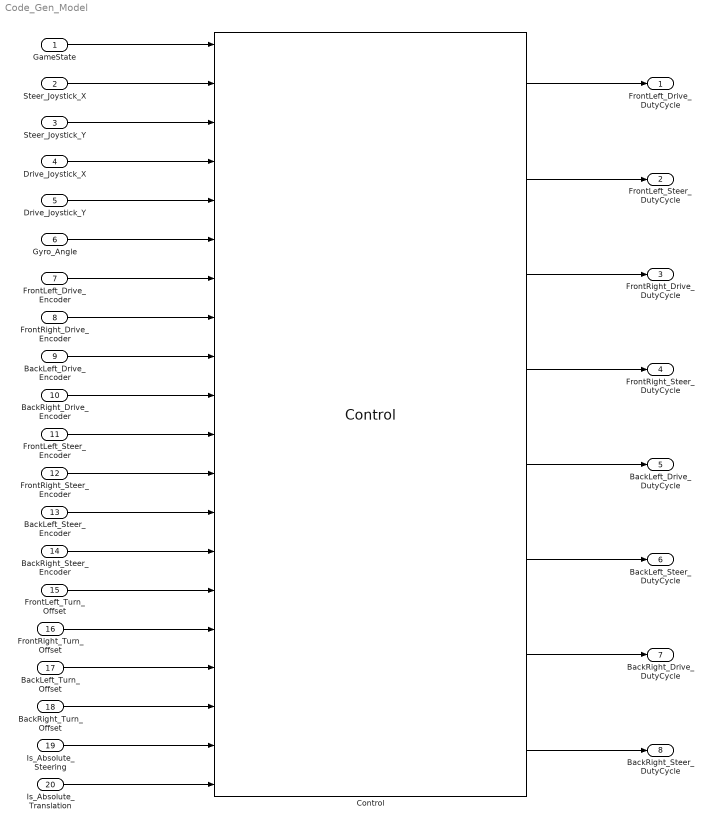
/*
 * Sponsored License - for use in support of a program or activity
 * sponsored by MathWorks.  Not for government, commercial or other
 * non-sponsored organizational use.
 *
 * File: Code_Gen_Model.c
 *
 * Code generated for Simulink model 'Code_Gen_Model'.
 *
 * Model version                  : 1.25
 * Simulink Coder version         : 9.9 (R2023a) 19-Nov-2022
 * C/C++ source code generated on : Thu Jun 22 19:21:42 2023
 *
 * Target selection: ert.tlc
 * Embedded hardware selection: Intel->x86-64 (Windows64)
 * Code generation objectives: Unspecified
 * Validation result: Not run
 */

#include "Code_Gen_Model.h"
#include "rtwtypes.h"
#include "Code_Gen_Model_private.h"
#include "rt_nonfinite.h"
#include <math.h>
#include "rt_defines.h"
#include <float.h>

/* Block signals (default storage) */
B_Code_Gen_Model_T Code_Gen_Model_B;

/* Block states (default storage) */
DW_Code_Gen_Model_T Code_Gen_Model_DW;

/* External inputs (root inport signals with default storage) */
ExtU_Code_Gen_Model_T Code_Gen_Model_U;

/* External outputs (root outports fed by signals with default storage) */
ExtY_Code_Gen_Model_T Code_Gen_Model_Y;

/* Real-time model */
static RT_MODEL_Code_Gen_Model_T Code_Gen_Model_M_;
RT_MODEL_Code_Gen_Model_T *const Code_Gen_Model_M = &Code_Gen_Model_M_;
real_T look1_binlcpw(real_T u0, const real_T bp0[], const real_T table[],
                     uint32_T maxIndex)
{
  real_T frac;
  real_T yL_0d0;
  uint32_T iLeft;

  /* Column-major Lookup 1-D
     Search method: 'binary'
     Use previous index: 'off'
     Interpolation method: 'Linear point-slope'
     Extrapolation method: 'Clip'
     Use last breakpoint for index at or above upper limit: 'off'
     Remove protection against out-of-range input in generated code: 'off'
   */
  /* Prelookup - Index and Fraction
     Index Search method: 'binary'
     Extrapolation method: 'Clip'
     Use previous index: 'off'
     Use last breakpoint for index at or above upper limit: 'off'
     Remove protection against out-of-range input in generated code: 'off'
   */
  if (u0 <= bp0[0U]) {
    iLeft = 0U;
    frac = 0.0;
  } else if (u0 < bp0[maxIndex]) {
    uint32_T bpIdx;
    uint32_T iRght;

    /* Binary Search */
    bpIdx = maxIndex >> 1U;
    iLeft = 0U;
    iRght = maxIndex;
    while (iRght - iLeft > 1U) {
      if (u0 < bp0[bpIdx]) {
        iRght = bpIdx;
      } else {
        iLeft = bpIdx;
      }

      bpIdx = iRght + iLeft >> 1U;
    }

    frac = (u0 - bp0[iLeft]) / (bp0[iLeft + 1U] - bp0[iLeft]);
  } else {
    iLeft = maxIndex - 1U;
    frac = 1.0;
  }

  /* Column-major Interpolation 1-D
     Interpolation method: 'Linear point-slope'
     Use last breakpoint for index at or above upper limit: 'off'
     Overflow mode: 'portable wrapping'
   */
  yL_0d0 = table[iLeft];
  return (table[iLeft + 1U] - yL_0d0) * frac + yL_0d0;
}

/* Start for atomic system: */
void Code_Gen_ModulobyConstant_Start(DW_ModulobyConstant_Code_Gen__T *localDW)
{
  /* Start for MATLABSystem: '<S144>/Modulo by Constant' */
  localDW->objisempty = true;
  localDW->obj.isInitialized = 1;
}

/* Output and update for atomic system: */
void Code_Gen_Model_ModulobyConstant(real_T rtu_0,
  B_ModulobyConstant_Code_Gen_M_T *localB)
{
  real_T yTemp;

  /* MATLABSystem: '<S144>/Modulo by Constant' */
  if (rtIsNaN(rtu_0) || rtIsInf(rtu_0)) {
    yTemp = (rtNaN);
  } else if (rtu_0 == 0.0) {
    yTemp = 0.0;
  } else {
    yTemp = fmod(rtu_0, 1.0);
    if (yTemp == 0.0) {
      yTemp = 0.0;
    } else if (rtu_0 < 0.0) {
      yTemp++;
    }
  }

  /* MATLABSystem: '<S144>/Modulo by Constant' */
  localB->ModulobyConstant = yTemp;
}

/*
 * Output and update for action system:
 *    '<S1>/Disabled'
 *    '<S1>/Autonomous'
 *    '<S1>/Test'
 */
void Code_Gen_Model_Disabled(real_T *rty_Gyro_Angle_Adjusted, real_T
  *rty_Steering_Abs_Cmd, real_T *rty_Steering_Rel_Cmd, real_T
  *rty_Translation_Angle, real_T *rty_Translation_Speed, boolean_T
  *rty_Is_Absolute_Translation_Out, boolean_T *rty_Is_Absolute_Steering_Out)
{
  /* Constant: '<S3>/Constant' */
  *rty_Gyro_Angle_Adjusted = 0.0;

  /* Constant: '<S3>/Constant1' */
  *rty_Steering_Abs_Cmd = 0.0;

  /* Constant: '<S3>/Constant2' */
  *rty_Steering_Rel_Cmd = 0.0;

  /* Constant: '<S3>/Constant3' */
  *rty_Translation_Angle = 0.0;

  /* Constant: '<S3>/Constant4' */
  *rty_Translation_Speed = 0.0;

  /* Constant: '<S3>/Constant5' */
  *rty_Is_Absolute_Translation_Out = true;

  /* Constant: '<S3>/Constant6' */
  *rty_Is_Absolute_Steering_Out = true;
}

real_T rt_atan2d_snf(real_T u0, real_T u1)
{
  real_T y;
  if (rtIsNaN(u0) || rtIsNaN(u1)) {
    y = (rtNaN);
  } else if (rtIsInf(u0) && rtIsInf(u1)) {
    int32_T tmp;
    int32_T tmp_0;
    if (u0 > 0.0) {
      tmp = 1;
    } else {
      tmp = -1;
    }

    if (u1 > 0.0) {
      tmp_0 = 1;
    } else {
      tmp_0 = -1;
    }

    y = atan2(tmp, tmp_0);
  } else if (u1 == 0.0) {
    if (u0 > 0.0) {
      y = RT_PI / 2.0;
    } else if (u0 < 0.0) {
      y = -(RT_PI / 2.0);
    } else {
      y = 0.0;
    }
  } else {
    y = atan2(u0, u1);
  }

  return y;
}

real_T rt_hypotd_snf(real_T u0, real_T u1)
{
  real_T a;
  real_T b;
  real_T y;
  a = fabs(u0);
  b = fabs(u1);
  if (a < b) {
    a /= b;
    y = sqrt(a * a + 1.0) * b;
  } else if (a > b) {
    b /= a;
    y = sqrt(b * b + 1.0) * a;
  } else if (rtIsNaN(b)) {
    y = (rtNaN);
  } else {
    y = a * 1.4142135623730951;
  }

  return y;
}

real_T rt_modd_snf(real_T u0, real_T u1)
{
  real_T y;
  y = u0;
  if (u1 == 0.0) {
    if (u0 == 0.0) {
      y = u1;
    }
  } else if (rtIsNaN(u0) || rtIsNaN(u1) || rtIsInf(u0)) {
    y = (rtNaN);
  } else if (u0 == 0.0) {
    y = 0.0 / u1;
  } else if (rtIsInf(u1)) {
    if (u1 < 0.0 != u0 < 0.0) {
      y = u1;
    }
  } else {
    boolean_T yEq;
    y = fmod(u0, u1);
    yEq = y == 0.0;
    if (!yEq && u1 > floor(u1)) {
      real_T q;
      q = fabs(u0 / u1);
      yEq = !(fabs(q - floor(q + 0.5)) > DBL_EPSILON * q);
    }

    if (yEq) {
      y = u1 * 0.0;
    } else if (u0 < 0.0 != u1 < 0.0) {
      y += u1;
    }
  }

  return y;
}

/* Model step function */
void Code_Gen_Model_step(void)
{
  /* local block i/o variables */
  real_T rtb_Abs;
  real_T rtb_Abs_j;
  real_T rtb_Abs_g;
  real_T rtb_Abs_p;
  real_T rtb_Abs_c;
  real_T rtb_Abs_a;
  real_T rtb_Abs_cq;
  real_T rtb_Abs_l;
  real_T rtb_Add_d_idx_0;
  real_T rtb_Add_d_idx_1;
  real_T rtb_Add_f_idx_0;
  real_T rtb_Add_f_idx_1;
  real_T rtb_Add_idx_0;
  real_T rtb_Add_idx_1;
  real_T rtb_Add_l_idx_0;
  real_T rtb_Add_l_idx_1;
  real_T rtb_Filter;
  real_T rtb_Filter_c;
  real_T rtb_Filter_fh;
  real_T rtb_Filter_h;
  real_T rtb_Filter_k;
  real_T rtb_Gyro_Error;
  real_T rtb_Hypot;
  real_T rtb_Hypot_i;
  real_T rtb_Hypot_j;
  real_T rtb_Integrator_i;
  real_T rtb_Modulation_Drv_Y;
  real_T rtb_RateLimiter;
  real_T rtb_Subtract_g;
  real_T rtb_Sum1;
  real_T rtb_Translation_Angle;
  real_T rtb_xtheta;
  boolean_T rtb_Compare_na;
  boolean_T rtb_Is_Absolute_Translation;

  /* SwitchCase: '<S1>/Switch Case' incorporates:
   *  Inport: '<Root>/GameState'
   */
  rtb_Hypot_j = trunc(Code_Gen_Model_U.GameState);
  if (rtIsNaN(rtb_Hypot_j) || rtIsInf(rtb_Hypot_j)) {
    rtb_Hypot_j = 0.0;
  } else {
    rtb_Hypot_j = fmod(rtb_Hypot_j, 4.294967296E+9);
  }

  switch (rtb_Hypot_j < 0.0 ? -(int32_T)(uint32_T)-rtb_Hypot_j : (int32_T)
          (uint32_T)rtb_Hypot_j) {
   case 0:
    /* Outputs for IfAction SubSystem: '<S1>/Disabled' incorporates:
     *  ActionPort: '<S3>/Action Port'
     */
    Code_Gen_Model_Disabled(&rtb_Filter_fh, &rtb_Filter_c, &rtb_Integrator_i,
      &rtb_Translation_Angle, &rtb_RateLimiter, &rtb_Is_Absolute_Translation,
      &rtb_Compare_na);

    /* End of Outputs for SubSystem: '<S1>/Disabled' */
    break;

   case 1:
    /* Outputs for IfAction SubSystem: '<S1>/Autonomous' incorporates:
     *  ActionPort: '<S2>/Action Port'
     */
    Code_Gen_Model_Disabled(&rtb_Filter_fh, &rtb_Filter_c, &rtb_Integrator_i,
      &rtb_Translation_Angle, &rtb_RateLimiter, &rtb_Is_Absolute_Translation,
      &rtb_Compare_na);

    /* End of Outputs for SubSystem: '<S1>/Autonomous' */
    break;

   case 2:
    /* Outputs for IfAction SubSystem: '<S1>/Teleop' incorporates:
     *  ActionPort: '<S5>/Action Port'
     */
    /* Lookup_n-D: '<S536>/Modulation_Str_X_Abs' incorporates:
     *  Inport: '<Root>/Steer_Joystick_X'
     *  Lookup_n-D: '<S536>/Modulation_Str_X_Rel'
     */
    rtb_Gyro_Error = look1_binlcpw(Code_Gen_Model_U.Steer_Joystick_X,
      Code_Gen_Model_ConstP.pooled8, Code_Gen_Model_ConstP.pooled7, 20U);

    /* Lookup_n-D: '<S536>/Modulation_Str_Y_Abs' incorporates:
     *  Inport: '<Root>/Steer_Joystick_Y'
     */
    rtb_Filter_c = look1_binlcpw(Code_Gen_Model_U.Steer_Joystick_Y,
      Code_Gen_Model_ConstP.pooled8, Code_Gen_Model_ConstP.pooled7, 20U);

    /* RelationalOperator: '<S541>/Compare' incorporates:
     *  Constant: '<S541>/Constant'
     */
    rtb_Is_Absolute_Translation = rtb_Filter_c < 0.0;

    /* Switch: '<S538>/Switch' incorporates:
     *  Constant: '<S538>/Constant'
     *  Constant: '<S538>/Constant1'
     *  Constant: '<S539>/Constant'
     *  Constant: '<S540>/Constant'
     *  Logic: '<S538>/Logical Operator'
     *  Lookup_n-D: '<S536>/Modulation_Str_X_Abs'
     *  RelationalOperator: '<S539>/Compare'
     *  RelationalOperator: '<S540>/Compare'
     *  UnitDelay: '<S538>/Unit Delay'
     */
    if (rtb_Gyro_Error < 0.0 && Code_Gen_Model_DW.UnitDelay_DSTATE >= 0.0 &&
        rtb_Is_Absolute_Translation) {
      rtb_Hypot_j = 6.2831853071795862;
    } else {
      rtb_Hypot_j = 0.0;
    }

    /* Switch: '<S538>/Switch1' incorporates:
     *  Constant: '<S538>/Constant2'
     *  Constant: '<S538>/Constant3'
     *  Constant: '<S542>/Constant'
     *  Constant: '<S543>/Constant'
     *  Logic: '<S538>/Logical Operator1'
     *  Lookup_n-D: '<S536>/Modulation_Str_X_Abs'
     *  RelationalOperator: '<S542>/Compare'
     *  RelationalOperator: '<S543>/Compare'
     *  UnitDelay: '<S538>/Unit Delay'
     */
    if (Code_Gen_Model_DW.UnitDelay_DSTATE < 0.0 && rtb_Gyro_Error >= 0.0 &&
        rtb_Is_Absolute_Translation) {
      rtb_Integrator_i = -6.2831853071795862;
    } else {
      rtb_Integrator_i = 0.0;
    }

    /* Sum: '<S538>/Sum1' incorporates:
     *  Switch: '<S538>/Switch'
     *  Switch: '<S538>/Switch1'
     *  UnitDelay: '<S538>/Unit Delay1'
     */
    rtb_Sum1 = rtb_Hypot_j + rtb_Integrator_i +
      Code_Gen_Model_DW.UnitDelay1_DSTATE;

    /* Sum: '<S538>/Sum' incorporates:
     *  Gain: '<S535>/Gain1'
     *  Inport: '<Root>/Gyro_Angle'
     */
    rtb_Filter_fh = 0.017453292519943295 * Code_Gen_Model_U.Gyro_Angle +
      rtb_Sum1;

    /* UnaryMinus: '<S536>/Unary Minus1' incorporates:
     *  Lookup_n-D: '<S536>/Modulation_Str_X_Abs'
     *  Trigonometry: '<S536>/Atan2'
     */
    rtb_Filter_c = -rt_atan2d_snf(rtb_Gyro_Error, rtb_Filter_c);

    /* Gain: '<S536>/Gain' */
    rtb_Integrator_i = -0.75 * rtb_Gyro_Error;

    /* Lookup_n-D: '<S537>/Modulation_Drv_X' incorporates:
     *  Inport: '<Root>/Drive_Joystick_X'
     */
    rtb_RateLimiter = look1_binlcpw(Code_Gen_Model_U.Drive_Joystick_X,
      Code_Gen_Model_ConstP.pooled8, Code_Gen_Model_ConstP.pooled7, 20U);

    /* Lookup_n-D: '<S537>/Modulation_Drv_Y' incorporates:
     *  Inport: '<Root>/Drive_Joystick_Y'
     */
    rtb_Modulation_Drv_Y = look1_binlcpw(Code_Gen_Model_U.Drive_Joystick_Y,
      Code_Gen_Model_ConstP.pooled8, Code_Gen_Model_ConstP.pooled7, 20U);

    /* Trigonometry: '<S537>/Atan2' */
    rtb_Translation_Angle = rt_atan2d_snf(rtb_RateLimiter, rtb_Modulation_Drv_Y);

    /* Math: '<S537>/Magnitude' */
    rtb_RateLimiter = rt_hypotd_snf(rtb_RateLimiter, rtb_Modulation_Drv_Y);

    /* RateLimiter: '<S537>/Rate Limiter' */
    rtb_Modulation_Drv_Y = rtb_RateLimiter - Code_Gen_Model_DW.PrevY;
    if (rtb_Modulation_Drv_Y > 0.018000000000000002) {
      rtb_RateLimiter = Code_Gen_Model_DW.PrevY + 0.018000000000000002;
    } else if (rtb_Modulation_Drv_Y < -19.98) {
      rtb_RateLimiter = Code_Gen_Model_DW.PrevY - 19.98;
    }

    Code_Gen_Model_DW.PrevY = rtb_RateLimiter;

    /* End of RateLimiter: '<S537>/Rate Limiter' */

    /* SignalConversion generated from: '<S5>/Is_Absolute_Translation_In' incorporates:
     *  Inport: '<Root>/Is_Absolute_Steering'
     */
    rtb_Is_Absolute_Translation = Code_Gen_Model_U.Is_Absolute_Steering;

    /* SignalConversion generated from: '<S5>/Is_Absolute_Steering_In' incorporates:
     *  Inport: '<Root>/Is_Absolute_Translation'
     */
    rtb_Compare_na = Code_Gen_Model_U.Is_Absolute_Translation;

    /* Update for UnitDelay: '<S538>/Unit Delay' incorporates:
     *  Lookup_n-D: '<S536>/Modulation_Str_X_Abs'
     */
    Code_Gen_Model_DW.UnitDelay_DSTATE = rtb_Gyro_Error;

    /* Update for UnitDelay: '<S538>/Unit Delay1' */
    Code_Gen_Model_DW.UnitDelay1_DSTATE = rtb_Sum1;

    /* End of Outputs for SubSystem: '<S1>/Teleop' */
    break;

   default:
    /* Outputs for IfAction SubSystem: '<S1>/Test' incorporates:
     *  ActionPort: '<S6>/Action Port'
     */
    Code_Gen_Model_Disabled(&rtb_Filter_fh, &rtb_Filter_c, &rtb_Integrator_i,
      &rtb_Translation_Angle, &rtb_RateLimiter, &rtb_Is_Absolute_Translation,
      &rtb_Compare_na);

    /* End of Outputs for SubSystem: '<S1>/Test' */
    break;
  }

  /* End of SwitchCase: '<S1>/Switch Case' */

  /* Switch: '<S15>/Switch' incorporates:
   *  Constant: '<S73>/Constant3'
   *  Constant: '<S73>/Constant4'
   *  Gain: '<S7>/Gain1'
   *  Inport: '<Root>/Gyro_Angle'
   *  Math: '<S73>/Math Function'
   *  Sum: '<S73>/Add1'
   *  Sum: '<S73>/Add2'
   */
  if (rtb_Is_Absolute_Translation) {
    rtb_Translation_Angle = rt_modd_snf(0.017453292519943295 *
      Code_Gen_Model_U.Gyro_Angle + rtb_Translation_Angle + 3.1415926535897931,
      6.2831853071795862) - 3.1415926535897931;
  }

  /* End of Switch: '<S15>/Switch' */

  /* UnaryMinus: '<S15>/Unary Minus' */
  rtb_Translation_Angle = -rtb_Translation_Angle;

  /* Sum: '<S21>/Sum' */
  rtb_Gyro_Error = rtb_Filter_c - rtb_Filter_fh;

  /* SampleTimeMath: '<S51>/Tsamp' incorporates:
   *  Gain: '<S48>/Derivative Gain'
   *
   * About '<S51>/Tsamp':
   *  y = u * K where K = 1 / ( w * Ts )
   */
  rtb_Sum1 = 0.0025 * rtb_Gyro_Error * 50.0;

  /* Switch: '<S14>/Switch' */
  if (rtb_Compare_na) {
    /* Sum: '<S65>/Sum' incorporates:
     *  Delay: '<S49>/UD'
     *  DiscreteIntegrator: '<S56>/Integrator'
     *  Sum: '<S49>/Diff'
     */
    rtb_Filter_c = rtb_Gyro_Error + Code_Gen_Model_DW.Integrator_DSTATE +
      (rtb_Sum1 - Code_Gen_Model_DW.UD_DSTATE);

    /* DeadZone: '<S21>/Dead Zone' */
    if (rtb_Filter_c > 0.01) {
      rtb_Integrator_i = rtb_Filter_c - 0.01;
    } else if (rtb_Filter_c >= 0.0) {
      rtb_Integrator_i = 0.0;
    } else {
      rtb_Integrator_i = rtb_Filter_c;
    }

    /* End of DeadZone: '<S21>/Dead Zone' */
  }

  /* End of Switch: '<S14>/Switch' */

  /* Fcn: '<S79>/r->x' incorporates:
   *  Fcn: '<S82>/r->x'
   *  Fcn: '<S85>/r->x'
   *  Fcn: '<S88>/r->x'
   */
  rtb_Filter_c = rtb_RateLimiter * cos(rtb_Translation_Angle);

  /* Sum: '<S74>/Add' incorporates:
   *  Fcn: '<S79>/r->x'
   *  Fcn: '<S80>/r->x'
   */
  rtb_Add_idx_0 = rtb_Integrator_i * cos(Code_Gen_Model_ConstB.Atan2_k) +
    rtb_Filter_c;

  /* Fcn: '<S79>/theta->y' incorporates:
   *  Fcn: '<S82>/theta->y'
   *  Fcn: '<S85>/theta->y'
   *  Fcn: '<S88>/theta->y'
   */
  rtb_Translation_Angle = rtb_RateLimiter * sin(rtb_Translation_Angle);

  /* Sum: '<S74>/Add' incorporates:
   *  Fcn: '<S79>/theta->y'
   *  Fcn: '<S80>/theta->y'
   */
  rtb_Add_idx_1 = rtb_Integrator_i * sin(Code_Gen_Model_ConstB.Atan2_k) +
    rtb_Translation_Angle;

  /* Sum: '<S75>/Add' incorporates:
   *  Fcn: '<S83>/r->x'
   *  Fcn: '<S83>/theta->y'
   */
  rtb_Add_l_idx_0 = rtb_Integrator_i * cos(Code_Gen_Model_ConstB.Atan2) +
    rtb_Filter_c;
  rtb_Add_l_idx_1 = rtb_Integrator_i * sin(Code_Gen_Model_ConstB.Atan2) +
    rtb_Translation_Angle;

  /* Sum: '<S76>/Add' incorporates:
   *  Fcn: '<S86>/r->x'
   *  Fcn: '<S86>/theta->y'
   */
  rtb_Add_d_idx_0 = rtb_Integrator_i * cos(Code_Gen_Model_ConstB.Atan2_i) +
    rtb_Filter_c;
  rtb_Add_d_idx_1 = rtb_Integrator_i * sin(Code_Gen_Model_ConstB.Atan2_i) +
    rtb_Translation_Angle;

  /* Sum: '<S77>/Add' incorporates:
   *  Fcn: '<S89>/r->x'
   *  Fcn: '<S89>/theta->y'
   */
  rtb_Add_f_idx_0 = rtb_Integrator_i * cos(Code_Gen_Model_ConstB.Atan2_p) +
    rtb_Filter_c;
  rtb_Add_f_idx_1 = rtb_Integrator_i * sin(Code_Gen_Model_ConstB.Atan2_p) +
    rtb_Translation_Angle;

  /* Fcn: '<S87>/x->theta' */
  rtb_xtheta = rt_atan2d_snf(rtb_Add_f_idx_1, rtb_Add_f_idx_0);

  /* Trigonometry: '<S483>/Cos4' incorporates:
   *  Switch: '<S426>/Angle_Switch'
   *  Trigonometry: '<S482>/Cos4'
   */
  rtb_Translation_Angle = cos(rtb_xtheta);

  /* Abs: '<S425>/Abs' incorporates:
   *  Inport: '<Root>/BackRight_Steer_Encoder'
   */
  rtb_Abs = fabs(Code_Gen_Model_U.BackRight_Steer_Encoder);
  Code_Gen_Model_ModulobyConstant(rtb_Abs, &Code_Gen_Model_B.ModulobyConstant_i);

  /* Switch: '<S425>/Switch' incorporates:
   *  Constant: '<S479>/Constant'
   *  Inport: '<Root>/BackRight_Steer_Encoder'
   *  RelationalOperator: '<S479>/Compare'
   *  UnaryMinus: '<S425>/Unary Minus'
   */
  if (Code_Gen_Model_U.BackRight_Steer_Encoder >= 0.0) {
    rtb_Hypot_j = Code_Gen_Model_B.ModulobyConstant_i.ModulobyConstant;
  } else {
    rtb_Hypot_j = -Code_Gen_Model_B.ModulobyConstant_i.ModulobyConstant;
  }

  /* Sum: '<S424>/Add' incorporates:
   *  Inport: '<Root>/BackRight_Turn_Offset'
   *  Switch: '<S425>/Switch'
   */
  rtb_Filter_c = rtb_Hypot_j + Code_Gen_Model_U.BackRight_Turn_Offset;

  /* Abs: '<S477>/Abs' */
  rtb_Abs_j = fabs(rtb_Filter_c);
  Code_Gen_Model_ModulobyConstant(rtb_Abs_j,
    &Code_Gen_Model_B.ModulobyConstant_l);

  /* Switch: '<S477>/Switch' incorporates:
   *  Constant: '<S478>/Constant'
   *  RelationalOperator: '<S478>/Compare'
   *  UnaryMinus: '<S477>/Unary Minus'
   */
  if (rtb_Filter_c >= 0.0) {
    rtb_Hypot_j = Code_Gen_Model_B.ModulobyConstant_l.ModulobyConstant;
  } else {
    rtb_Hypot_j = -Code_Gen_Model_B.ModulobyConstant_l.ModulobyConstant;
  }

  /* Gain: '<S424>/Gain' incorporates:
   *  Switch: '<S477>/Switch'
   */
  rtb_Filter_c = 6.2831853071795862 * rtb_Hypot_j;

  /* Trigonometry: '<S483>/Sin5' incorporates:
   *  UnaryMinus: '<S481>/Unary Minus'
   */
  rtb_Filter_fh = sin(-rtb_Filter_c);

  /* Trigonometry: '<S483>/Sin4' incorporates:
   *  Switch: '<S426>/Angle_Switch'
   *  Trigonometry: '<S482>/Sin4'
   */
  rtb_RateLimiter = sin(rtb_xtheta);

  /* Trigonometry: '<S483>/Cos5' incorporates:
   *  UnaryMinus: '<S481>/Unary Minus'
   */
  rtb_Integrator_i = cos(-rtb_Filter_c);

  /* Sum: '<S483>/Subtract1' incorporates:
   *  Product: '<S483>/Product2'
   *  Product: '<S483>/Product3'
   *  Trigonometry: '<S483>/Cos4'
   *  Trigonometry: '<S483>/Sin4'
   */
  rtb_Modulation_Drv_Y = rtb_Translation_Angle * rtb_Filter_fh + rtb_RateLimiter
    * rtb_Integrator_i;

  /* Sum: '<S483>/Subtract' incorporates:
   *  Product: '<S483>/Product'
   *  Product: '<S483>/Product1'
   *  Trigonometry: '<S483>/Cos4'
   *  Trigonometry: '<S483>/Sin4'
   */
  rtb_Integrator_i = rtb_Translation_Angle * rtb_Integrator_i - rtb_RateLimiter *
    rtb_Filter_fh;

  /* Math: '<S483>/Hypot' */
  rtb_Hypot = rt_hypotd_snf(rtb_Integrator_i, rtb_Modulation_Drv_Y);

  /* Switch: '<S483>/Switch' incorporates:
   *  Constant: '<S483>/Constant'
   *  Constant: '<S483>/Constant1'
   *  Constant: '<S484>/Constant'
   *  Product: '<S483>/Divide'
   *  Product: '<S483>/Divide1'
   *  RelationalOperator: '<S484>/Compare'
   *  Switch: '<S483>/Switch1'
   */
  if (rtb_Hypot > 1.0E-6) {
    rtb_Filter_fh = rtb_Modulation_Drv_Y / rtb_Hypot;
    rtb_Integrator_i /= rtb_Hypot;
  } else {
    rtb_Filter_fh = 0.0;
    rtb_Integrator_i = 1.0;
  }

  /* End of Switch: '<S483>/Switch' */

  /* RelationalOperator: '<S480>/Compare' incorporates:
   *  Abs: '<S426>/Abs'
   *  Constant: '<S480>/Constant'
   *  Trigonometry: '<S483>/Atan1'
   */
  rtb_Compare_na = fabs(rt_atan2d_snf(rtb_Filter_fh, rtb_Integrator_i)) >
    1.5707963267948966;

  /* Switch: '<S426>/Speed_Switch' incorporates:
   *  Fcn: '<S87>/x->r'
   *  UnaryMinus: '<S426>/Unary Minus'
   */
  if (rtb_Compare_na) {
    rtb_Hypot_j = -rt_hypotd_snf(rtb_Add_f_idx_0, rtb_Add_f_idx_1);
  } else {
    rtb_Hypot_j = rt_hypotd_snf(rtb_Add_f_idx_0, rtb_Add_f_idx_1);
  }

  /* Sum: '<S12>/Sum' incorporates:
   *  Constant: '<S427>/Gear_Ratio'
   *  Constant: '<S427>/Pi'
   *  Constant: '<S427>/Sec//Min'
   *  Constant: '<S427>/Wheel_Diameter'
   *  Inport: '<Root>/BackRight_Drive_Encoder'
   *  Product: '<S427>/Product2'
   *  Switch: '<S426>/Speed_Switch'
   */
  rtb_Filter_fh = rtb_Hypot_j * 60.0 * 8.14 / 3.1415926535897931 / 0.101600203 -
    Code_Gen_Model_U.BackRight_Drive_Encoder;

  /* Gain: '<S463>/Filter Coefficient' incorporates:
   *  DiscreteIntegrator: '<S455>/Filter'
   *  Gain: '<S454>/Derivative Gain'
   *  Sum: '<S455>/SumD'
   */
  rtb_Integrator_i = (1.0E-6 * rtb_Filter_fh - Code_Gen_Model_DW.Filter_DSTATE) *
    100.0;

  /* Sum: '<S469>/Sum' incorporates:
   *  DiscreteIntegrator: '<S460>/Integrator'
   *  Gain: '<S465>/Proportional Gain'
   */
  rtb_Hypot_j = 0.5 * rtb_Filter_fh + Code_Gen_Model_DW.Integrator_DSTATE_j +
    rtb_Integrator_i;

  /* Saturate: '<S467>/Saturation' */
  if (rtb_Hypot_j > 5700.0) {
    rtb_Hypot_j = 5700.0;
  } else if (rtb_Hypot_j < -5700.0) {
    rtb_Hypot_j = -5700.0;
  }

  /* Outport: '<Root>/BackRight_Drive_DutyCycle' incorporates:
   *  Constant: '<S12>/NEO_Max_Speed'
   *  Product: '<S12>/Divide'
   *  Saturate: '<S467>/Saturation'
   */
  Code_Gen_Model_Y.BackRight_Drive_DutyCycle = rtb_Hypot_j / 5700.0;

  /* Gain: '<S457>/Integral Gain' */
  rtb_Modulation_Drv_Y = 0.0 * rtb_Filter_fh;

  /* Switch: '<S426>/Angle_Switch' incorporates:
   *  Trigonometry: '<S482>/Atan1'
   */
  if (rtb_Compare_na) {
    /* Sum: '<S482>/Subtract1' incorporates:
     *  Product: '<S482>/Product2'
     *  Product: '<S482>/Product3'
     */
    rtb_Filter_fh = rtb_Translation_Angle * Code_Gen_Model_ConstB.Sin5_a +
      rtb_RateLimiter * Code_Gen_Model_ConstB.Cos5_m;

    /* Sum: '<S482>/Subtract' incorporates:
     *  Product: '<S482>/Product'
     *  Product: '<S482>/Product1'
     */
    rtb_RateLimiter = rtb_Translation_Angle * Code_Gen_Model_ConstB.Cos5_m -
      rtb_RateLimiter * Code_Gen_Model_ConstB.Sin5_a;

    /* Math: '<S482>/Hypot' */
    rtb_Translation_Angle = rt_hypotd_snf(rtb_RateLimiter, rtb_Filter_fh);

    /* Switch: '<S482>/Switch1' incorporates:
     *  Constant: '<S482>/Constant'
     *  Constant: '<S482>/Constant1'
     *  Constant: '<S485>/Constant'
     *  Product: '<S482>/Divide'
     *  Product: '<S482>/Divide1'
     *  RelationalOperator: '<S485>/Compare'
     *  Switch: '<S482>/Switch'
     */
    if (rtb_Translation_Angle > 1.0E-6) {
      rtb_RateLimiter /= rtb_Translation_Angle;
      rtb_Translation_Angle = rtb_Filter_fh / rtb_Translation_Angle;
    } else {
      rtb_RateLimiter = 1.0;
      rtb_Translation_Angle = 0.0;
    }

    /* End of Switch: '<S482>/Switch1' */
    rtb_Filter_fh = rt_atan2d_snf(rtb_Translation_Angle, rtb_RateLimiter);
  } else {
    rtb_Filter_fh = rtb_xtheta;
  }

  /* Sum: '<S12>/Sum1' */
  rtb_Filter_c = rtb_Filter_fh - rtb_Filter_c;

  /* Gain: '<S520>/Filter Coefficient' incorporates:
   *  DiscreteIntegrator: '<S512>/Filter'
   *  Gain: '<S511>/Derivative Gain'
   *  Sum: '<S512>/SumD'
   */
  rtb_Filter_fh = (1.0E-7 * rtb_Filter_c - Code_Gen_Model_DW.Filter_DSTATE_j) *
    100.0;

  /* Gain: '<S515>/Proportional Gain' incorporates:
   *  DiscreteIntegrator: '<S517>/Integrator'
   *  Sum: '<S526>/Sum'
   */
  rtb_Hypot_j = (rtb_Filter_c + Code_Gen_Model_DW.Integrator_DSTATE_d +
                 rtb_Filter_fh) * 0.1;

  /* Saturate: '<S524>/Saturation' */
  if (rtb_Hypot_j > 1.0) {
    /* Outport: '<Root>/BackRight_Steer_DutyCycle' */
    Code_Gen_Model_Y.BackRight_Steer_DutyCycle = 1.0;
  } else if (rtb_Hypot_j < -1.0) {
    /* Outport: '<Root>/BackRight_Steer_DutyCycle' */
    Code_Gen_Model_Y.BackRight_Steer_DutyCycle = -1.0;
  } else {
    /* Outport: '<Root>/BackRight_Steer_DutyCycle' */
    Code_Gen_Model_Y.BackRight_Steer_DutyCycle = rtb_Hypot_j;
  }

  /* End of Saturate: '<S524>/Saturation' */

  /* Fcn: '<S84>/x->theta' */
  rtb_Add_f_idx_0 = rt_atan2d_snf(rtb_Add_d_idx_1, rtb_Add_d_idx_0);

  /* Trigonometry: '<S372>/Cos4' incorporates:
   *  Switch: '<S315>/Angle_Switch'
   *  Trigonometry: '<S371>/Cos4'
   */
  rtb_Hypot = cos(rtb_Add_f_idx_0);

  /* Abs: '<S314>/Abs' incorporates:
   *  Inport: '<Root>/BackLeft_Steer_Encoder'
   */
  rtb_Abs_g = fabs(Code_Gen_Model_U.BackLeft_Steer_Encoder);
  Code_Gen_Model_ModulobyConstant(rtb_Abs_g,
    &Code_Gen_Model_B.ModulobyConstant_a);

  /* Switch: '<S314>/Switch' incorporates:
   *  Constant: '<S368>/Constant'
   *  Inport: '<Root>/BackLeft_Steer_Encoder'
   *  RelationalOperator: '<S368>/Compare'
   *  UnaryMinus: '<S314>/Unary Minus'
   */
  if (Code_Gen_Model_U.BackLeft_Steer_Encoder >= 0.0) {
    rtb_Hypot_j = Code_Gen_Model_B.ModulobyConstant_a.ModulobyConstant;
  } else {
    rtb_Hypot_j = -Code_Gen_Model_B.ModulobyConstant_a.ModulobyConstant;
  }

  /* Sum: '<S313>/Add' incorporates:
   *  Inport: '<Root>/BackLeft_Turn_Offset'
   *  Switch: '<S314>/Switch'
   */
  rtb_Translation_Angle = rtb_Hypot_j + Code_Gen_Model_U.BackLeft_Turn_Offset;

  /* Abs: '<S366>/Abs' */
  rtb_Abs_p = fabs(rtb_Translation_Angle);
  Code_Gen_Model_ModulobyConstant(rtb_Abs_p,
    &Code_Gen_Model_B.ModulobyConstant_c);

  /* Switch: '<S366>/Switch' incorporates:
   *  Constant: '<S367>/Constant'
   *  RelationalOperator: '<S367>/Compare'
   *  UnaryMinus: '<S366>/Unary Minus'
   */
  if (rtb_Translation_Angle >= 0.0) {
    rtb_Hypot_j = Code_Gen_Model_B.ModulobyConstant_c.ModulobyConstant;
  } else {
    rtb_Hypot_j = -Code_Gen_Model_B.ModulobyConstant_c.ModulobyConstant;
  }

  /* Gain: '<S313>/Gain' incorporates:
   *  Switch: '<S366>/Switch'
   */
  rtb_Translation_Angle = 6.2831853071795862 * rtb_Hypot_j;

  /* Trigonometry: '<S372>/Sin5' incorporates:
   *  UnaryMinus: '<S370>/Unary Minus'
   */
  rtb_Add_f_idx_1 = sin(-rtb_Translation_Angle);

  /* Trigonometry: '<S372>/Sin4' incorporates:
   *  Switch: '<S315>/Angle_Switch'
   *  Trigonometry: '<S371>/Sin4'
   */
  rtb_Subtract_g = sin(rtb_Add_f_idx_0);

  /* Trigonometry: '<S372>/Cos5' incorporates:
   *  UnaryMinus: '<S370>/Unary Minus'
   */
  rtb_RateLimiter = cos(-rtb_Translation_Angle);

  /* Sum: '<S372>/Subtract1' incorporates:
   *  Product: '<S372>/Product2'
   *  Product: '<S372>/Product3'
   *  Trigonometry: '<S372>/Cos4'
   *  Trigonometry: '<S372>/Sin4'
   */
  rtb_xtheta = rtb_Hypot * rtb_Add_f_idx_1 + rtb_Subtract_g * rtb_RateLimiter;

  /* Sum: '<S372>/Subtract' incorporates:
   *  Product: '<S372>/Product'
   *  Product: '<S372>/Product1'
   *  Trigonometry: '<S372>/Cos4'
   *  Trigonometry: '<S372>/Sin4'
   */
  rtb_RateLimiter = rtb_Hypot * rtb_RateLimiter - rtb_Subtract_g *
    rtb_Add_f_idx_1;

  /* Math: '<S372>/Hypot' */
  rtb_Add_f_idx_1 = rt_hypotd_snf(rtb_RateLimiter, rtb_xtheta);

  /* Switch: '<S372>/Switch' incorporates:
   *  Constant: '<S372>/Constant'
   *  Constant: '<S372>/Constant1'
   *  Constant: '<S373>/Constant'
   *  Product: '<S372>/Divide'
   *  Product: '<S372>/Divide1'
   *  RelationalOperator: '<S373>/Compare'
   *  Switch: '<S372>/Switch1'
   */
  if (rtb_Add_f_idx_1 > 1.0E-6) {
    rtb_Filter_h = rtb_xtheta / rtb_Add_f_idx_1;
    rtb_Add_f_idx_1 = rtb_RateLimiter / rtb_Add_f_idx_1;
  } else {
    rtb_Filter_h = 0.0;
    rtb_Add_f_idx_1 = 1.0;
  }

  /* End of Switch: '<S372>/Switch' */

  /* RelationalOperator: '<S369>/Compare' incorporates:
   *  Abs: '<S315>/Abs'
   *  Constant: '<S369>/Constant'
   *  Trigonometry: '<S372>/Atan1'
   */
  rtb_Compare_na = fabs(rt_atan2d_snf(rtb_Filter_h, rtb_Add_f_idx_1)) >
    1.5707963267948966;

  /* Switch: '<S315>/Speed_Switch' incorporates:
   *  Fcn: '<S84>/x->r'
   *  UnaryMinus: '<S315>/Unary Minus'
   */
  if (rtb_Compare_na) {
    rtb_Hypot_j = -rt_hypotd_snf(rtb_Add_d_idx_0, rtb_Add_d_idx_1);
  } else {
    rtb_Hypot_j = rt_hypotd_snf(rtb_Add_d_idx_0, rtb_Add_d_idx_1);
  }

  /* Sum: '<S11>/Sum' incorporates:
   *  Constant: '<S316>/Gear_Ratio'
   *  Constant: '<S316>/Pi'
   *  Constant: '<S316>/Sec//Min'
   *  Constant: '<S316>/Wheel_Diameter'
   *  Inport: '<Root>/BackLeft_Drive_Encoder'
   *  Product: '<S316>/Product2'
   *  Switch: '<S315>/Speed_Switch'
   */
  rtb_Filter_h = rtb_Hypot_j * 60.0 * 8.14 / 3.1415926535897931 / 0.101600203 -
    Code_Gen_Model_U.BackLeft_Drive_Encoder;

  /* Gain: '<S352>/Filter Coefficient' incorporates:
   *  DiscreteIntegrator: '<S344>/Filter'
   *  Gain: '<S343>/Derivative Gain'
   *  Sum: '<S344>/SumD'
   */
  rtb_RateLimiter = (1.0E-6 * rtb_Filter_h - Code_Gen_Model_DW.Filter_DSTATE_g) *
    100.0;

  /* Sum: '<S358>/Sum' incorporates:
   *  DiscreteIntegrator: '<S349>/Integrator'
   *  Gain: '<S354>/Proportional Gain'
   */
  rtb_Hypot_j = 0.5 * rtb_Filter_h + Code_Gen_Model_DW.Integrator_DSTATE_g +
    rtb_RateLimiter;

  /* Saturate: '<S356>/Saturation' */
  if (rtb_Hypot_j > 5700.0) {
    rtb_Hypot_j = 5700.0;
  } else if (rtb_Hypot_j < -5700.0) {
    rtb_Hypot_j = -5700.0;
  }

  /* Outport: '<Root>/BackLeft_Drive_DutyCycle' incorporates:
   *  Constant: '<S11>/NEO_Max_Speed'
   *  Product: '<S11>/Divide'
   *  Saturate: '<S356>/Saturation'
   */
  Code_Gen_Model_Y.BackLeft_Drive_DutyCycle = rtb_Hypot_j / 5700.0;

  /* Gain: '<S346>/Integral Gain' */
  rtb_xtheta = 0.0 * rtb_Filter_h;

  /* Switch: '<S315>/Angle_Switch' incorporates:
   *  Trigonometry: '<S371>/Atan1'
   */
  if (rtb_Compare_na) {
    /* Sum: '<S371>/Subtract1' incorporates:
     *  Product: '<S371>/Product2'
     *  Product: '<S371>/Product3'
     */
    rtb_Add_f_idx_0 = rtb_Hypot * Code_Gen_Model_ConstB.Sin5_dw + rtb_Subtract_g
      * Code_Gen_Model_ConstB.Cos5_e;

    /* Sum: '<S371>/Subtract' incorporates:
     *  Product: '<S371>/Product'
     *  Product: '<S371>/Product1'
     */
    rtb_Subtract_g = rtb_Hypot * Code_Gen_Model_ConstB.Cos5_e - rtb_Subtract_g *
      Code_Gen_Model_ConstB.Sin5_dw;

    /* Math: '<S371>/Hypot' */
    rtb_Hypot = rt_hypotd_snf(rtb_Subtract_g, rtb_Add_f_idx_0);

    /* Switch: '<S371>/Switch1' incorporates:
     *  Constant: '<S371>/Constant'
     *  Constant: '<S371>/Constant1'
     *  Constant: '<S374>/Constant'
     *  Product: '<S371>/Divide'
     *  Product: '<S371>/Divide1'
     *  RelationalOperator: '<S374>/Compare'
     *  Switch: '<S371>/Switch'
     */
    if (rtb_Hypot > 1.0E-6) {
      rtb_Subtract_g /= rtb_Hypot;
      rtb_Hypot = rtb_Add_f_idx_0 / rtb_Hypot;
    } else {
      rtb_Subtract_g = 1.0;
      rtb_Hypot = 0.0;
    }

    /* End of Switch: '<S371>/Switch1' */
    rtb_Filter_h = rt_atan2d_snf(rtb_Hypot, rtb_Subtract_g);
  } else {
    rtb_Filter_h = rtb_Add_f_idx_0;
  }

  /* Sum: '<S11>/Sum1' */
  rtb_Translation_Angle = rtb_Filter_h - rtb_Translation_Angle;

  /* Gain: '<S409>/Filter Coefficient' incorporates:
   *  DiscreteIntegrator: '<S401>/Filter'
   *  Gain: '<S400>/Derivative Gain'
   *  Sum: '<S401>/SumD'
   */
  rtb_Hypot = (1.0E-7 * rtb_Translation_Angle -
               Code_Gen_Model_DW.Filter_DSTATE_o) * 100.0;

  /* Gain: '<S404>/Proportional Gain' incorporates:
   *  DiscreteIntegrator: '<S406>/Integrator'
   *  Sum: '<S415>/Sum'
   */
  rtb_Hypot_j = (rtb_Translation_Angle + Code_Gen_Model_DW.Integrator_DSTATE_k +
                 rtb_Hypot) * 0.1;

  /* Saturate: '<S413>/Saturation' */
  if (rtb_Hypot_j > 1.0) {
    /* Outport: '<Root>/BackLeft_Steer_DutyCycle' */
    Code_Gen_Model_Y.BackLeft_Steer_DutyCycle = 1.0;
  } else if (rtb_Hypot_j < -1.0) {
    /* Outport: '<Root>/BackLeft_Steer_DutyCycle' */
    Code_Gen_Model_Y.BackLeft_Steer_DutyCycle = -1.0;
  } else {
    /* Outport: '<Root>/BackLeft_Steer_DutyCycle' */
    Code_Gen_Model_Y.BackLeft_Steer_DutyCycle = rtb_Hypot_j;
  }

  /* End of Saturate: '<S413>/Saturation' */

  /* Gain: '<S403>/Integral Gain' */
  rtb_Subtract_g = 0.0 * rtb_Translation_Angle;

  /* Fcn: '<S81>/x->theta' */
  rtb_Add_d_idx_0 = rt_atan2d_snf(rtb_Add_l_idx_1, rtb_Add_l_idx_0);

  /* Trigonometry: '<S261>/Cos4' incorporates:
   *  Switch: '<S204>/Angle_Switch'
   *  Trigonometry: '<S260>/Cos4'
   */
  rtb_Add_f_idx_1 = cos(rtb_Add_d_idx_0);

  /* Abs: '<S203>/Abs' incorporates:
   *  Inport: '<Root>/FrontRight_Steer_Encoder'
   */
  rtb_Abs_c = fabs(Code_Gen_Model_U.FrontRight_Steer_Encoder);
  Code_Gen_Model_ModulobyConstant(rtb_Abs_c,
    &Code_Gen_Model_B.ModulobyConstant_o);

  /* Switch: '<S203>/Switch' incorporates:
   *  Constant: '<S257>/Constant'
   *  Inport: '<Root>/FrontRight_Steer_Encoder'
   *  RelationalOperator: '<S257>/Compare'
   *  UnaryMinus: '<S203>/Unary Minus'
   */
  if (Code_Gen_Model_U.FrontRight_Steer_Encoder >= 0.0) {
    rtb_Hypot_j = Code_Gen_Model_B.ModulobyConstant_o.ModulobyConstant;
  } else {
    rtb_Hypot_j = -Code_Gen_Model_B.ModulobyConstant_o.ModulobyConstant;
  }

  /* Sum: '<S202>/Add' incorporates:
   *  Inport: '<Root>/FrontRight_Turn_Offset'
   *  Switch: '<S203>/Switch'
   */
  rtb_Translation_Angle = rtb_Hypot_j + Code_Gen_Model_U.FrontRight_Turn_Offset;

  /* Abs: '<S255>/Abs' */
  rtb_Abs_a = fabs(rtb_Translation_Angle);
  Code_Gen_Model_ModulobyConstant(rtb_Abs_a,
    &Code_Gen_Model_B.ModulobyConstant_f);

  /* Switch: '<S255>/Switch' incorporates:
   *  Constant: '<S256>/Constant'
   *  RelationalOperator: '<S256>/Compare'
   *  UnaryMinus: '<S255>/Unary Minus'
   */
  if (rtb_Translation_Angle >= 0.0) {
    rtb_Hypot_j = Code_Gen_Model_B.ModulobyConstant_f.ModulobyConstant;
  } else {
    rtb_Hypot_j = -Code_Gen_Model_B.ModulobyConstant_f.ModulobyConstant;
  }

  /* Gain: '<S202>/Gain' incorporates:
   *  Switch: '<S255>/Switch'
   */
  rtb_Translation_Angle = 6.2831853071795862 * rtb_Hypot_j;

  /* Trigonometry: '<S261>/Sin5' incorporates:
   *  UnaryMinus: '<S259>/Unary Minus'
   */
  rtb_Filter_h = sin(-rtb_Translation_Angle);

  /* Trigonometry: '<S261>/Sin4' incorporates:
   *  Switch: '<S204>/Angle_Switch'
   *  Trigonometry: '<S260>/Sin4'
   */
  rtb_Add_d_idx_1 = sin(rtb_Add_d_idx_0);

  /* Trigonometry: '<S261>/Cos5' incorporates:
   *  UnaryMinus: '<S259>/Unary Minus'
   */
  rtb_Filter = cos(-rtb_Translation_Angle);

  /* Sum: '<S261>/Subtract1' incorporates:
   *  Product: '<S261>/Product2'
   *  Product: '<S261>/Product3'
   *  Trigonometry: '<S261>/Cos4'
   *  Trigonometry: '<S261>/Sin4'
   */
  rtb_Add_f_idx_0 = rtb_Add_f_idx_1 * rtb_Filter_h + rtb_Add_d_idx_1 *
    rtb_Filter;

  /* Sum: '<S261>/Subtract' incorporates:
   *  Product: '<S261>/Product'
   *  Product: '<S261>/Product1'
   *  Trigonometry: '<S261>/Cos4'
   *  Trigonometry: '<S261>/Sin4'
   */
  rtb_Filter_h = rtb_Add_f_idx_1 * rtb_Filter - rtb_Add_d_idx_1 * rtb_Filter_h;

  /* Math: '<S261>/Hypot' */
  rtb_Hypot_i = rt_hypotd_snf(rtb_Filter_h, rtb_Add_f_idx_0);

  /* Switch: '<S261>/Switch' incorporates:
   *  Constant: '<S261>/Constant'
   *  Constant: '<S261>/Constant1'
   *  Constant: '<S262>/Constant'
   *  Product: '<S261>/Divide'
   *  Product: '<S261>/Divide1'
   *  RelationalOperator: '<S262>/Compare'
   *  Switch: '<S261>/Switch1'
   */
  if (rtb_Hypot_i > 1.0E-6) {
    rtb_Filter = rtb_Add_f_idx_0 / rtb_Hypot_i;
    rtb_Filter_h /= rtb_Hypot_i;
  } else {
    rtb_Filter = 0.0;
    rtb_Filter_h = 1.0;
  }

  /* End of Switch: '<S261>/Switch' */

  /* RelationalOperator: '<S258>/Compare' incorporates:
   *  Abs: '<S204>/Abs'
   *  Constant: '<S258>/Constant'
   *  Trigonometry: '<S261>/Atan1'
   */
  rtb_Compare_na = fabs(rt_atan2d_snf(rtb_Filter, rtb_Filter_h)) >
    1.5707963267948966;

  /* Switch: '<S204>/Speed_Switch' incorporates:
   *  Fcn: '<S81>/x->r'
   *  UnaryMinus: '<S204>/Unary Minus'
   */
  if (rtb_Compare_na) {
    rtb_Hypot_j = -rt_hypotd_snf(rtb_Add_l_idx_0, rtb_Add_l_idx_1);
  } else {
    rtb_Hypot_j = rt_hypotd_snf(rtb_Add_l_idx_0, rtb_Add_l_idx_1);
  }

  /* Sum: '<S10>/Sum' incorporates:
   *  Constant: '<S205>/Gear_Ratio'
   *  Constant: '<S205>/Pi'
   *  Constant: '<S205>/Sec//Min'
   *  Constant: '<S205>/Wheel_Diameter'
   *  Inport: '<Root>/FrontRight_Drive_Encoder'
   *  Product: '<S205>/Product2'
   *  Switch: '<S204>/Speed_Switch'
   */
  rtb_Filter = rtb_Hypot_j * 60.0 * 8.14 / 3.1415926535897931 / 0.101600203 -
    Code_Gen_Model_U.FrontRight_Drive_Encoder;

  /* Gain: '<S241>/Filter Coefficient' incorporates:
   *  DiscreteIntegrator: '<S233>/Filter'
   *  Gain: '<S232>/Derivative Gain'
   *  Sum: '<S233>/SumD'
   */
  rtb_Add_f_idx_0 = (1.0E-6 * rtb_Filter - Code_Gen_Model_DW.Filter_DSTATE_a) *
    100.0;

  /* Sum: '<S247>/Sum' incorporates:
   *  DiscreteIntegrator: '<S238>/Integrator'
   *  Gain: '<S243>/Proportional Gain'
   */
  rtb_Hypot_j = 0.5 * rtb_Filter + Code_Gen_Model_DW.Integrator_DSTATE_l +
    rtb_Add_f_idx_0;

  /* Saturate: '<S245>/Saturation' */
  if (rtb_Hypot_j > 5700.0) {
    rtb_Hypot_j = 5700.0;
  } else if (rtb_Hypot_j < -5700.0) {
    rtb_Hypot_j = -5700.0;
  }

  /* Outport: '<Root>/FrontRight_Drive_DutyCycle' incorporates:
   *  Constant: '<S10>/NEO_Max_Speed'
   *  Product: '<S10>/Divide'
   *  Saturate: '<S245>/Saturation'
   */
  Code_Gen_Model_Y.FrontRight_Drive_DutyCycle = rtb_Hypot_j / 5700.0;

  /* Gain: '<S235>/Integral Gain' */
  rtb_Filter_h = 0.0 * rtb_Filter;

  /* Switch: '<S204>/Angle_Switch' incorporates:
   *  Trigonometry: '<S260>/Atan1'
   */
  if (rtb_Compare_na) {
    /* Sum: '<S260>/Subtract1' incorporates:
     *  Product: '<S260>/Product2'
     *  Product: '<S260>/Product3'
     */
    rtb_Add_d_idx_0 = rtb_Add_f_idx_1 * Code_Gen_Model_ConstB.Sin5_d +
      rtb_Add_d_idx_1 * Code_Gen_Model_ConstB.Cos5_c;

    /* Sum: '<S260>/Subtract' incorporates:
     *  Product: '<S260>/Product'
     *  Product: '<S260>/Product1'
     */
    rtb_Add_d_idx_1 = rtb_Add_f_idx_1 * Code_Gen_Model_ConstB.Cos5_c -
      rtb_Add_d_idx_1 * Code_Gen_Model_ConstB.Sin5_d;

    /* Math: '<S260>/Hypot' */
    rtb_Add_f_idx_1 = rt_hypotd_snf(rtb_Add_d_idx_1, rtb_Add_d_idx_0);

    /* Switch: '<S260>/Switch1' incorporates:
     *  Constant: '<S260>/Constant'
     *  Constant: '<S260>/Constant1'
     *  Constant: '<S263>/Constant'
     *  Product: '<S260>/Divide'
     *  Product: '<S260>/Divide1'
     *  RelationalOperator: '<S263>/Compare'
     *  Switch: '<S260>/Switch'
     */
    if (rtb_Add_f_idx_1 > 1.0E-6) {
      rtb_Add_d_idx_1 /= rtb_Add_f_idx_1;
      rtb_Add_f_idx_1 = rtb_Add_d_idx_0 / rtb_Add_f_idx_1;
    } else {
      rtb_Add_d_idx_1 = 1.0;
      rtb_Add_f_idx_1 = 0.0;
    }

    /* End of Switch: '<S260>/Switch1' */
    rtb_Filter = rt_atan2d_snf(rtb_Add_f_idx_1, rtb_Add_d_idx_1);
  } else {
    rtb_Filter = rtb_Add_d_idx_0;
  }

  /* Sum: '<S10>/Sum1' */
  rtb_Translation_Angle = rtb_Filter - rtb_Translation_Angle;

  /* Gain: '<S298>/Filter Coefficient' incorporates:
   *  DiscreteIntegrator: '<S290>/Filter'
   *  Gain: '<S289>/Derivative Gain'
   *  Sum: '<S290>/SumD'
   */
  rtb_Add_f_idx_1 = (1.0E-7 * rtb_Translation_Angle -
                     Code_Gen_Model_DW.Filter_DSTATE_aj) * 100.0;

  /* Gain: '<S293>/Proportional Gain' incorporates:
   *  DiscreteIntegrator: '<S295>/Integrator'
   *  Sum: '<S304>/Sum'
   */
  rtb_Hypot_j = (rtb_Translation_Angle + Code_Gen_Model_DW.Integrator_DSTATE_b +
                 rtb_Add_f_idx_1) * 0.1;

  /* Saturate: '<S302>/Saturation' */
  if (rtb_Hypot_j > 1.0) {
    /* Outport: '<Root>/FrontRight_Steer_DutyCycle' */
    Code_Gen_Model_Y.FrontRight_Steer_DutyCycle = 1.0;
  } else if (rtb_Hypot_j < -1.0) {
    /* Outport: '<Root>/FrontRight_Steer_DutyCycle' */
    Code_Gen_Model_Y.FrontRight_Steer_DutyCycle = -1.0;
  } else {
    /* Outport: '<Root>/FrontRight_Steer_DutyCycle' */
    Code_Gen_Model_Y.FrontRight_Steer_DutyCycle = rtb_Hypot_j;
  }

  /* End of Saturate: '<S302>/Saturation' */

  /* Gain: '<S292>/Integral Gain' */
  rtb_Add_d_idx_1 = 0.0 * rtb_Translation_Angle;

  /* Fcn: '<S78>/x->theta' */
  rtb_Add_l_idx_0 = rt_atan2d_snf(rtb_Add_idx_1, rtb_Add_idx_0);

  /* Trigonometry: '<S150>/Cos4' incorporates:
   *  Switch: '<S93>/Angle_Switch'
   *  Trigonometry: '<S149>/Cos4'
   */
  rtb_Add_d_idx_0 = cos(rtb_Add_l_idx_0);

  /* Abs: '<S92>/Abs' incorporates:
   *  Inport: '<Root>/FrontLeft_Steer_Encoder'
   */
  rtb_Abs_cq = fabs(Code_Gen_Model_U.FrontLeft_Steer_Encoder);
  Code_Gen_Model_ModulobyConstant(rtb_Abs_cq,
    &Code_Gen_Model_B.ModulobyConstant_p);

  /* Switch: '<S92>/Switch' incorporates:
   *  Constant: '<S146>/Constant'
   *  Inport: '<Root>/FrontLeft_Steer_Encoder'
   *  RelationalOperator: '<S146>/Compare'
   *  UnaryMinus: '<S92>/Unary Minus'
   */
  if (Code_Gen_Model_U.FrontLeft_Steer_Encoder >= 0.0) {
    rtb_Hypot_j = Code_Gen_Model_B.ModulobyConstant_p.ModulobyConstant;
  } else {
    rtb_Hypot_j = -Code_Gen_Model_B.ModulobyConstant_p.ModulobyConstant;
  }

  /* Sum: '<S91>/Add' incorporates:
   *  Inport: '<Root>/FrontLeft_Turn_Offset'
   *  Switch: '<S92>/Switch'
   */
  rtb_Translation_Angle = rtb_Hypot_j + Code_Gen_Model_U.FrontLeft_Turn_Offset;

  /* Abs: '<S144>/Abs' */
  rtb_Abs_l = fabs(rtb_Translation_Angle);
  Code_Gen_Model_ModulobyConstant(rtb_Abs_l, &Code_Gen_Model_B.ModulobyConstant);

  /* Switch: '<S144>/Switch' incorporates:
   *  Constant: '<S145>/Constant'
   *  RelationalOperator: '<S145>/Compare'
   *  UnaryMinus: '<S144>/Unary Minus'
   */
  if (rtb_Translation_Angle >= 0.0) {
    rtb_Hypot_j = Code_Gen_Model_B.ModulobyConstant.ModulobyConstant;
  } else {
    rtb_Hypot_j = -Code_Gen_Model_B.ModulobyConstant.ModulobyConstant;
  }

  /* Gain: '<S91>/Gain' incorporates:
   *  Switch: '<S144>/Switch'
   */
  rtb_Translation_Angle = 6.2831853071795862 * rtb_Hypot_j;

  /* Trigonometry: '<S150>/Sin5' incorporates:
   *  UnaryMinus: '<S148>/Unary Minus'
   */
  rtb_Add_l_idx_1 = sin(-rtb_Translation_Angle);

  /* Trigonometry: '<S150>/Sin4' incorporates:
   *  Switch: '<S93>/Angle_Switch'
   *  Trigonometry: '<S149>/Sin4'
   */
  rtb_Filter = sin(rtb_Add_l_idx_0);

  /* Trigonometry: '<S150>/Cos5' incorporates:
   *  UnaryMinus: '<S148>/Unary Minus'
   */
  rtb_Filter_k = cos(-rtb_Translation_Angle);

  /* Sum: '<S150>/Subtract1' incorporates:
   *  Product: '<S150>/Product2'
   *  Product: '<S150>/Product3'
   *  Trigonometry: '<S150>/Cos4'
   *  Trigonometry: '<S150>/Sin4'
   */
  rtb_Hypot_i = rtb_Add_d_idx_0 * rtb_Add_l_idx_1 + rtb_Filter * rtb_Filter_k;

  /* Sum: '<S150>/Subtract' incorporates:
   *  Product: '<S150>/Product'
   *  Product: '<S150>/Product1'
   *  Trigonometry: '<S150>/Cos4'
   *  Trigonometry: '<S150>/Sin4'
   */
  rtb_Add_l_idx_1 = rtb_Add_d_idx_0 * rtb_Filter_k - rtb_Filter *
    rtb_Add_l_idx_1;

  /* Math: '<S150>/Hypot' */
  rtb_Hypot_j = rt_hypotd_snf(rtb_Add_l_idx_1, rtb_Hypot_i);

  /* Switch: '<S150>/Switch' incorporates:
   *  Constant: '<S150>/Constant'
   *  Constant: '<S150>/Constant1'
   *  Constant: '<S151>/Constant'
   *  Product: '<S150>/Divide'
   *  Product: '<S150>/Divide1'
   *  RelationalOperator: '<S151>/Compare'
   *  Switch: '<S150>/Switch1'
   */
  if (rtb_Hypot_j > 1.0E-6) {
    rtb_Filter_k = rtb_Hypot_i / rtb_Hypot_j;
    rtb_Add_l_idx_1 /= rtb_Hypot_j;
  } else {
    rtb_Filter_k = 0.0;
    rtb_Add_l_idx_1 = 1.0;
  }

  /* End of Switch: '<S150>/Switch' */

  /* RelationalOperator: '<S147>/Compare' incorporates:
   *  Abs: '<S93>/Abs'
   *  Constant: '<S147>/Constant'
   *  Trigonometry: '<S150>/Atan1'
   */
  rtb_Compare_na = fabs(rt_atan2d_snf(rtb_Filter_k, rtb_Add_l_idx_1)) >
    1.5707963267948966;

  /* Switch: '<S93>/Speed_Switch' incorporates:
   *  Fcn: '<S78>/x->r'
   *  UnaryMinus: '<S93>/Unary Minus'
   */
  if (rtb_Compare_na) {
    rtb_Hypot_j = -rt_hypotd_snf(rtb_Add_idx_0, rtb_Add_idx_1);
  } else {
    rtb_Hypot_j = rt_hypotd_snf(rtb_Add_idx_0, rtb_Add_idx_1);
  }

  /* Sum: '<S9>/Sum' incorporates:
   *  Constant: '<S94>/Gear_Ratio'
   *  Constant: '<S94>/Pi'
   *  Constant: '<S94>/Sec//Min'
   *  Constant: '<S94>/Wheel_Diameter'
   *  Inport: '<Root>/FrontLeft_Drive_Encoder'
   *  Product: '<S94>/Product2'
   *  Switch: '<S93>/Speed_Switch'
   */
  rtb_Filter_k = rtb_Hypot_j * 60.0 * 8.14 / 3.1415926535897931 / 0.101600203 -
    Code_Gen_Model_U.FrontLeft_Drive_Encoder;

  /* Gain: '<S130>/Filter Coefficient' incorporates:
   *  DiscreteIntegrator: '<S122>/Filter'
   *  Gain: '<S121>/Derivative Gain'
   *  Sum: '<S122>/SumD'
   */
  rtb_Hypot_i = (1.0E-6 * rtb_Filter_k - Code_Gen_Model_DW.Filter_DSTATE_p) *
    100.0;

  /* Sum: '<S136>/Sum' incorporates:
   *  DiscreteIntegrator: '<S127>/Integrator'
   *  Gain: '<S132>/Proportional Gain'
   */
  rtb_Hypot_j = 0.5 * rtb_Filter_k + Code_Gen_Model_DW.Integrator_DSTATE_p +
    rtb_Hypot_i;

  /* Saturate: '<S134>/Saturation' */
  if (rtb_Hypot_j > 5700.0) {
    rtb_Hypot_j = 5700.0;
  } else if (rtb_Hypot_j < -5700.0) {
    rtb_Hypot_j = -5700.0;
  }

  /* Outport: '<Root>/FrontLeft_Drive_DutyCycle' incorporates:
   *  Constant: '<S9>/NEO_Max_Speed'
   *  Product: '<S9>/Divide'
   *  Saturate: '<S134>/Saturation'
   */
  Code_Gen_Model_Y.FrontLeft_Drive_DutyCycle = rtb_Hypot_j / 5700.0;

  /* Gain: '<S124>/Integral Gain' */
  rtb_Add_l_idx_1 = 0.0 * rtb_Filter_k;

  /* Switch: '<S93>/Angle_Switch' incorporates:
   *  Trigonometry: '<S149>/Atan1'
   */
  if (rtb_Compare_na) {
    /* Sum: '<S149>/Subtract1' incorporates:
     *  Product: '<S149>/Product2'
     *  Product: '<S149>/Product3'
     */
    rtb_Add_l_idx_0 = rtb_Add_d_idx_0 * Code_Gen_Model_ConstB.Sin5 + rtb_Filter *
      Code_Gen_Model_ConstB.Cos5;

    /* Sum: '<S149>/Subtract' incorporates:
     *  Product: '<S149>/Product'
     *  Product: '<S149>/Product1'
     */
    rtb_Filter = rtb_Add_d_idx_0 * Code_Gen_Model_ConstB.Cos5 - rtb_Filter *
      Code_Gen_Model_ConstB.Sin5;

    /* Math: '<S149>/Hypot' */
    rtb_Add_d_idx_0 = rt_hypotd_snf(rtb_Filter, rtb_Add_l_idx_0);

    /* Switch: '<S149>/Switch1' incorporates:
     *  Constant: '<S149>/Constant'
     *  Constant: '<S149>/Constant1'
     *  Constant: '<S152>/Constant'
     *  Product: '<S149>/Divide'
     *  Product: '<S149>/Divide1'
     *  RelationalOperator: '<S152>/Compare'
     *  Switch: '<S149>/Switch'
     */
    if (rtb_Add_d_idx_0 > 1.0E-6) {
      rtb_Filter /= rtb_Add_d_idx_0;
      rtb_Add_d_idx_0 = rtb_Add_l_idx_0 / rtb_Add_d_idx_0;
    } else {
      rtb_Filter = 1.0;
      rtb_Add_d_idx_0 = 0.0;
    }

    /* End of Switch: '<S149>/Switch1' */
    rtb_Filter_k = rt_atan2d_snf(rtb_Add_d_idx_0, rtb_Filter);
  } else {
    rtb_Filter_k = rtb_Add_l_idx_0;
  }

  /* Sum: '<S9>/Sum1' */
  rtb_Translation_Angle = rtb_Filter_k - rtb_Translation_Angle;

  /* Gain: '<S187>/Filter Coefficient' incorporates:
   *  DiscreteIntegrator: '<S179>/Filter'
   *  Gain: '<S178>/Derivative Gain'
   *  Sum: '<S179>/SumD'
   */
  rtb_Add_d_idx_0 = (1.0E-7 * rtb_Translation_Angle -
                     Code_Gen_Model_DW.Filter_DSTATE_l) * 100.0;

  /* Gain: '<S182>/Proportional Gain' incorporates:
   *  DiscreteIntegrator: '<S184>/Integrator'
   *  Sum: '<S193>/Sum'
   */
  rtb_Hypot_j = (rtb_Translation_Angle + Code_Gen_Model_DW.Integrator_DSTATE_jk
                 + rtb_Add_d_idx_0) * 0.1;

  /* Saturate: '<S191>/Saturation' */
  if (rtb_Hypot_j > 1.0) {
    /* Outport: '<Root>/FrontLeft_Steer_DutyCycle' */
    Code_Gen_Model_Y.FrontLeft_Steer_DutyCycle = 1.0;
  } else if (rtb_Hypot_j < -1.0) {
    /* Outport: '<Root>/FrontLeft_Steer_DutyCycle' */
    Code_Gen_Model_Y.FrontLeft_Steer_DutyCycle = -1.0;
  } else {
    /* Outport: '<Root>/FrontLeft_Steer_DutyCycle' */
    Code_Gen_Model_Y.FrontLeft_Steer_DutyCycle = rtb_Hypot_j;
  }

  /* End of Saturate: '<S191>/Saturation' */

  /* Update for DiscreteIntegrator: '<S56>/Integrator' incorporates:
   *  Gain: '<S53>/Integral Gain'
   */
  Code_Gen_Model_DW.Integrator_DSTATE += 0.02 * rtb_Gyro_Error * 0.02;

  /* Update for Delay: '<S49>/UD' */
  Code_Gen_Model_DW.UD_DSTATE = rtb_Sum1;

  /* Update for DiscreteIntegrator: '<S460>/Integrator' */
  Code_Gen_Model_DW.Integrator_DSTATE_j += rtb_Modulation_Drv_Y;

  /* Update for DiscreteIntegrator: '<S455>/Filter' */
  Code_Gen_Model_DW.Filter_DSTATE += 0.02 * rtb_Integrator_i;

  /* Update for DiscreteIntegrator: '<S512>/Filter' */
  Code_Gen_Model_DW.Filter_DSTATE_j += 0.02 * rtb_Filter_fh;

  /* Update for DiscreteIntegrator: '<S517>/Integrator' incorporates:
   *  Gain: '<S514>/Integral Gain'
   */
  Code_Gen_Model_DW.Integrator_DSTATE_d += 0.0 * rtb_Filter_c;

  /* Update for DiscreteIntegrator: '<S349>/Integrator' */
  Code_Gen_Model_DW.Integrator_DSTATE_g += rtb_xtheta;

  /* Update for DiscreteIntegrator: '<S344>/Filter' */
  Code_Gen_Model_DW.Filter_DSTATE_g += 0.02 * rtb_RateLimiter;

  /* Update for DiscreteIntegrator: '<S401>/Filter' */
  Code_Gen_Model_DW.Filter_DSTATE_o += 0.02 * rtb_Hypot;

  /* Update for DiscreteIntegrator: '<S406>/Integrator' */
  Code_Gen_Model_DW.Integrator_DSTATE_k += rtb_Subtract_g;

  /* Update for DiscreteIntegrator: '<S238>/Integrator' */
  Code_Gen_Model_DW.Integrator_DSTATE_l += rtb_Filter_h;

  /* Update for DiscreteIntegrator: '<S233>/Filter' */
  Code_Gen_Model_DW.Filter_DSTATE_a += 0.02 * rtb_Add_f_idx_0;

  /* Update for DiscreteIntegrator: '<S290>/Filter' */
  Code_Gen_Model_DW.Filter_DSTATE_aj += 0.02 * rtb_Add_f_idx_1;

  /* Update for DiscreteIntegrator: '<S295>/Integrator' */
  Code_Gen_Model_DW.Integrator_DSTATE_b += rtb_Add_d_idx_1;

  /* Update for DiscreteIntegrator: '<S127>/Integrator' */
  Code_Gen_Model_DW.Integrator_DSTATE_p += rtb_Add_l_idx_1;

  /* Update for DiscreteIntegrator: '<S122>/Filter' */
  Code_Gen_Model_DW.Filter_DSTATE_p += 0.02 * rtb_Hypot_i;

  /* Update for DiscreteIntegrator: '<S179>/Filter' */
  Code_Gen_Model_DW.Filter_DSTATE_l += 0.02 * rtb_Add_d_idx_0;

  /* Update for DiscreteIntegrator: '<S184>/Integrator' incorporates:
   *  Gain: '<S181>/Integral Gain'
   */
  Code_Gen_Model_DW.Integrator_DSTATE_jk += 0.0 * rtb_Translation_Angle;
}
